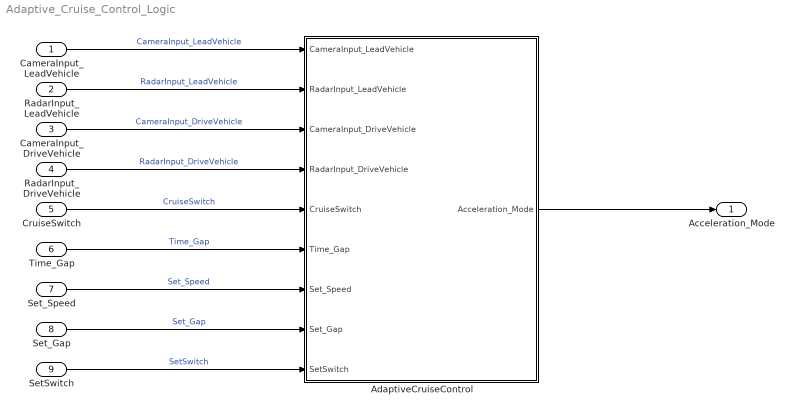
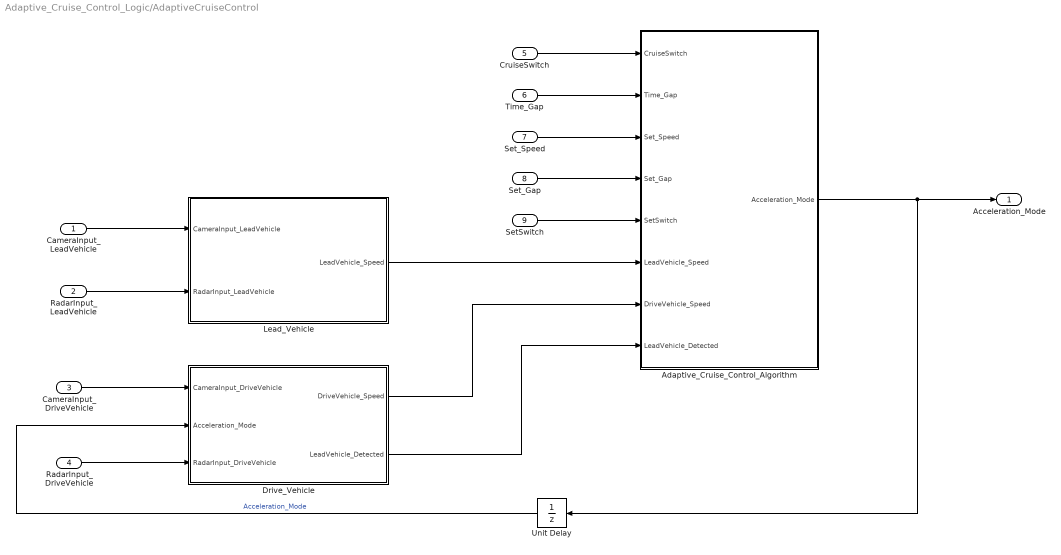
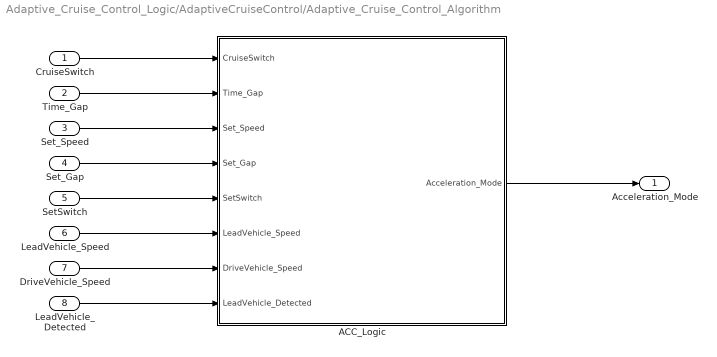
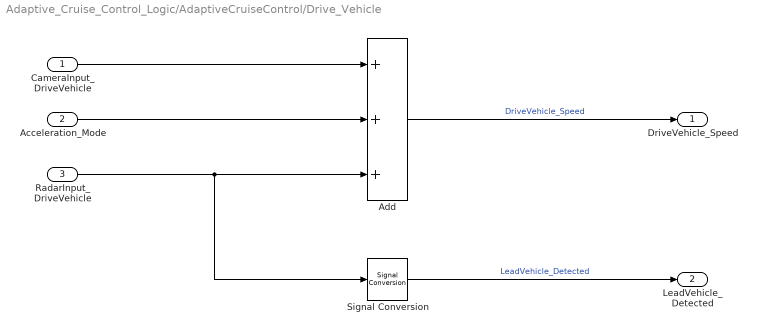
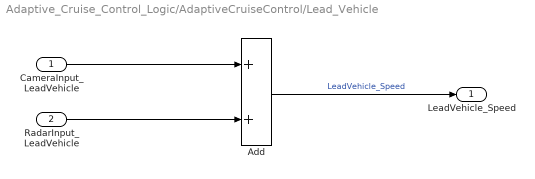
== stateflow chart Adaptive_Cruise_Control_Logic/AdaptiveCruiseControl/Adaptive_Cruise_Control_Algorithm/ACC_Logic ==
  state ACC_STANDBY_MODE
    entry:
    Acceleration_Mode=1;
  state ACC_OFF_MODE
    entry:
    Acceleration_Mode = 0;
  state ACC_ON_MODE
    state LeadVehicle_Detected_Resume
      entry:
      Acceleration_Mode=3;
    state LeadVehicle_Not_Detected_Resume
      entry:
      Acceleration_Mode=1;
    state LeadVehicle_Detected_Follow
      entry:
      Acceleration_Mode=2;
    state LeadVehicle_Not_Detected
      entry:
      Acceleration_Mode=1;
    state LeadVehicle_Speed_lessthan_Set_Speed
      entry:
      Acceleration_Mode=4;
    state LeadVehicle_Speed_equal_Set_Speed
      entry:
      Acceleration_Mode=5;
    (default) -> LeadVehicle_Detected_Follow
    LeadVehicle_Detected_Resume -> LeadVehicle_Detected_Follow [order 1] : [(DriveVehicle_Speed == Set_Speed) &&...  (LeadVehicle_Speed >= Set_Speed) &&...  (Time_Gap >= Set_Gap)]
    LeadVehicle_Detected_Resume -> LeadVehicle_Not_Detected_Resume [order 2] : [LeadVehicle_Detected==0]
    LeadVehicle_Detected_Follow -> LeadVehicle_Not_Detected [order 1] : [LeadVehicle_Detected == 0]
    LeadVehicle_Not_Detected -> LeadVehicle_Detected_Follow [order 1] : [(LeadVehicle_Detected == 1)&&... (DriveVehicle_Speed == Set_Speed) &&... (LeadVehicle_Speed >= Set_Speed) &&... (Time_Gap >= Set_Gap)]
    LeadVehicle_Speed_equal_Set_Speed -> LeadVehicle_Detected_Resume [order 1] : [(DriveVehicle_Speed < Set_Speed) &&...  (LeadVehicle_Speed > DriveVehicle_Speed) &&...  (Time_Gap >= Set_Gap)]
    LeadVehicle_Detected_Resume -> LeadVehicle_Speed_equal_Set_Speed [order 3] : [(DriveVehicle_Speed < Set_Speed) &&...  (LeadVehicle_Speed > DriveVehicle_Speed) ||...  (Time_Gap >= Set_Gap)]
    LeadVehicle_Speed_equal_Set_Speed -> LeadVehicle_Not_Detected_Resume [order 2] : [(LeadVehicle_Detected == 0) ||... (DriveVehicle_Speed <= Set_Speed)]
    LeadVehicle_Detected_Follow -> LeadVehicle_Speed_lessthan_Set_Speed [order 2] : [(LeadVehicle_Detected == 1)&&... (DriveVehicle_Speed < Set_Speed) ||... (Time_Gap < Set_Gap)]
    LeadVehicle_Not_Detected -> LeadVehicle_Speed_lessthan_Set_Speed [order 2] : [(LeadVehicle_Detected == 1) &&... (DriveVehicle_Speed < Set_Speed) ||... (Time_Gap < Set_Gap)]
    LeadVehicle_Speed_lessthan_Set_Speed -> LeadVehicle_Not_Detected [order 1] : [(LeadVehicle_Detected == 0) &&... (DriveVehicle_Speed == Set_Speed)]
    LeadVehicle_Speed_equal_Set_Speed -> LeadVehicle_Speed_lessthan_Set_Speed [order 3] : [(LeadVehicle_Speed < Set_Speed) &&... (LeadVehicle_Speed < DriveVehicle_Speed) ||... (Time_Gap ==0.75*Set_Gap)]
    LeadVehicle_Speed_lessthan_Set_Speed -> LeadVehicle_Speed_equal_Set_Speed [order 2] : [((LeadVehicle_Speed*1.25>=DriveVehicle_Speed) &&...  (LeadVehicle_Speed * 0.75<=DriveVehicle_Speed)) &&...  (DriveVehicle_Speed < Set_Speed) &&...  ((Time_Gap<=1.25*Set_Gap) &&...  (Time_Gap >=0.75*Set_Gap))]
  (default) -> ACC_OFF_MODE
  ACC_OFF_MODE -> ACC_STANDBY_MODE : [CruiseSwitch==1]
  ACC_STANDBY_MODE -> ACC_OFF_MODE [order 1] : [CruiseSwitch==0]
  ACC_ON_MODE -> ACC_OFF_MODE [order 2] : [CruiseSwitch==0]
  ACC_STANDBY_MODE -> ACC_ON_MODE [order 2] : [SetSwitch==1]
  ACC_ON_MODE -> ACC_STANDBY_MODE [order 1] : [SetSwitch==0]
  data: CruiseSwitch input; Time_Gap input; Set_Speed input; Set_Gap input; SetSwitch input; LeadVehicle_Speed input; DriveVehicle_Speed input; LeadVehicle_Detected input; Acceleration_Mode output uint8

/*
 * File: Adaptive_Cruise_Control_Logic.c
 *
 * Code generated for Simulink model 'Adaptive_Cruise_Control_Logic'.
 *
 * Model version                  : 1.18
 * Simulink Coder version         : 9.5 (R2021a) 14-Nov-2020
 * C/C++ source code generated on : Mon Apr  4 12:35:28 2022
 *
 * Target selection: ert.tlc
 * Embedded hardware selection: Intel->x86-64 (Windows64)
 * Code generation objectives: Unspecified
 * Validation result: Not run
 */

#include "Adaptive_Cruise_Control_Logic.h"
#include "Adaptive_Cruise_Control_Logic_private.h"

/* Named constants for Chart: '<S2>/ACC_Logic' */
#define Ada_IN_LeadVehicle_Not_Detected ((uint8_T)3U)
#define Adaptive_Cr_IN_ACC_STANDBY_MODE ((uint8_T)3U)
#define Adaptive_Cru_IN_NO_ACTIVE_CHILD ((uint8_T)0U)
#define Adaptive_Cruise_IN_ACC_OFF_MODE ((uint8_T)1U)
#define Adaptive_Cruise__IN_ACC_ON_MODE ((uint8_T)2U)
#define IN_LeadVehicle_Detected_Follow ((uint8_T)1U)
#define IN_LeadVehicle_Detected_Resume ((uint8_T)2U)
#define IN_LeadVehicle_Not_Detected_Res ((uint8_T)4U)
#define IN_LeadVehicle_Speed_equal_Set_ ((uint8_T)5U)
#define IN_LeadVehicle_Speed_lessthan_S ((uint8_T)6U)

/* Exported data definition */

/* Definition for custom storage class: ExportToFile */
uint8_T Acceleration_Mode;             /* '<S1>/Unit Delay' */

/* Block states (default storage) */
DW_Adaptive_Cruise_Control_Lo_T Adaptive_Cruise_Control_Logi_DW;

/* External outputs (root outports fed by signals with default storage) */
ExtY_Adaptive_Cruise_Control__T Adaptive_Cruise_Control_Logic_Y;

/* Real-time model */
static RT_MODEL_Adaptive_Cruise_Cont_T Adaptive_Cruise_Control_Logi_M_;
RT_MODEL_Adaptive_Cruise_Cont_T *const Adaptive_Cruise_Control_Logi_M =
  &Adaptive_Cruise_Control_Logi_M_;

/* Model step function */
void Adaptive_Cruise_Control_Logic_step(void)
{
  /* local block i/o variables */
  uint8_T LeadVehicle_Speed;
  uint8_T DriveVehicle_Speed;
  uint8_T LeadVehicle_Detected;

  /* Outputs for Atomic SubSystem: '<Root>/AdaptiveCruiseControl' */
  /* Sum: '<S4>/Add' incorporates:
   *  Inport: '<Root>/CameraInput_LeadVehicle'
   *  Inport: '<Root>/RadarInput_LeadVehicle'
   */
  LeadVehicle_Speed = (uint8_T)((uint32_T)CameraInput_LeadVehicle +
    RadarInput_LeadVehicle);

  /* UnitDelay: '<S1>/Unit Delay' */
  Acceleration_Mode = Adaptive_Cruise_Control_Logic_Y.Acceleration_Mode_j;

  /* Sum: '<S3>/Add' incorporates:
   *  Inport: '<Root>/CameraInput_DriveVehicle'
   *  Inport: '<Root>/RadarInput_DriveVehicle'
   */
  DriveVehicle_Speed = (uint8_T)((uint32_T)(uint8_T)((uint32_T)
    CameraInput_DriveVehicle + Acceleration_Mode) + RadarInput_DriveVehicle);

  /* SignalConversion: '<S3>/Signal Conversion' incorporates:
   *  Inport: '<Root>/RadarInput_DriveVehicle'
   */
  LeadVehicle_Detected = RadarInput_DriveVehicle;

  /* Chart: '<S2>/ACC_Logic' incorporates:
   *  Inport: '<Root>/CruiseSwitch'
   *  Inport: '<Root>/SetSwitch'
   *  Inport: '<Root>/Set_Gap'
   *  Inport: '<Root>/Set_Speed'
   *  Inport: '<Root>/Time_Gap'
   *  UnitDelay: '<S1>/Unit Delay'
   */
  if (Adaptive_Cruise_Control_Logi_DW.is_active_c1_Adaptive_Cruise_Co == 0U) {
    Adaptive_Cruise_Control_Logi_DW.is_active_c1_Adaptive_Cruise_Co = 1U;
    Adaptive_Cruise_Control_Logi_DW.is_c1_Adaptive_Cruise_Control_L =
      Adaptive_Cruise_IN_ACC_OFF_MODE;
    Adaptive_Cruise_Control_Logic_Y.Acceleration_Mode_j = 0U;
  } else {
    switch (Adaptive_Cruise_Control_Logi_DW.is_c1_Adaptive_Cruise_Control_L) {
     case Adaptive_Cruise_IN_ACC_OFF_MODE:
      Adaptive_Cruise_Control_Logic_Y.Acceleration_Mode_j = 0U;
      if (CruiseSwitch) {
        Adaptive_Cruise_Control_Logi_DW.is_c1_Adaptive_Cruise_Control_L =
          Adaptive_Cr_IN_ACC_STANDBY_MODE;
        Adaptive_Cruise_Control_Logic_Y.Acceleration_Mode_j = 1U;
      }
      break;

     case Adaptive_Cruise__IN_ACC_ON_MODE:
      if (!SetSwitch) {
        Adaptive_Cruise_Control_Logi_DW.is_ACC_ON_MODE =
          Adaptive_Cru_IN_NO_ACTIVE_CHILD;
        Adaptive_Cruise_Control_Logi_DW.is_c1_Adaptive_Cruise_Control_L =
          Adaptive_Cr_IN_ACC_STANDBY_MODE;
        Adaptive_Cruise_Control_Logic_Y.Acceleration_Mode_j = 1U;
      } else if (!CruiseSwitch) {
        Adaptive_Cruise_Control_Logi_DW.is_ACC_ON_MODE =
          Adaptive_Cru_IN_NO_ACTIVE_CHILD;
        Adaptive_Cruise_Control_Logi_DW.is_c1_Adaptive_Cruise_Control_L =
          Adaptive_Cruise_IN_ACC_OFF_MODE;
        Adaptive_Cruise_Control_Logic_Y.Acceleration_Mode_j = 0U;
      } else {
        switch (Adaptive_Cruise_Control_Logi_DW.is_ACC_ON_MODE) {
         case IN_LeadVehicle_Detected_Follow:
          Adaptive_Cruise_Control_Logic_Y.Acceleration_Mode_j = 2U;
          if (LeadVehicle_Detected == 0) {
            Adaptive_Cruise_Control_Logi_DW.is_ACC_ON_MODE =
              Ada_IN_LeadVehicle_Not_Detected;
            Adaptive_Cruise_Control_Logic_Y.Acceleration_Mode_j = 1U;
          } else if (((LeadVehicle_Detected == 1) && (DriveVehicle_Speed <
                       Set_Speed)) || (Time_Gap < Set_Gap)) {
            Adaptive_Cruise_Control_Logi_DW.is_ACC_ON_MODE =
              IN_LeadVehicle_Speed_lessthan_S;
            Adaptive_Cruise_Control_Logic_Y.Acceleration_Mode_j = 4U;
          }
          break;

         case IN_LeadVehicle_Detected_Resume:
          Adaptive_Cruise_Control_Logic_Y.Acceleration_Mode_j = 3U;
          if ((DriveVehicle_Speed == Set_Speed) && (LeadVehicle_Speed >=
               Set_Speed) && (Time_Gap >= Set_Gap)) {
            Adaptive_Cruise_Control_Logi_DW.is_ACC_ON_MODE =
              IN_LeadVehicle_Detected_Follow;
            Adaptive_Cruise_Control_Logic_Y.Acceleration_Mode_j = 2U;
          } else if (LeadVehicle_Detected == 0) {
            Adaptive_Cruise_Control_Logi_DW.is_ACC_ON_MODE =
              IN_LeadVehicle_Not_Detected_Res;
            Adaptive_Cruise_Control_Logic_Y.Acceleration_Mode_j = 1U;
          } else if (((DriveVehicle_Speed < Set_Speed) && (LeadVehicle_Speed >
                       DriveVehicle_Speed)) || (Time_Gap >= Set_Gap)) {
            Adaptive_Cruise_Control_Logi_DW.is_ACC_ON_MODE =
              IN_LeadVehicle_Speed_equal_Set_;
            Adaptive_Cruise_Control_Logic_Y.Acceleration_Mode_j = 5U;
          }
          break;

         case Ada_IN_LeadVehicle_Not_Detected:
          Adaptive_Cruise_Control_Logic_Y.Acceleration_Mode_j = 1U;
          if ((LeadVehicle_Detected == 1) && (DriveVehicle_Speed == Set_Speed) &&
              (LeadVehicle_Speed >= Set_Speed) && (Time_Gap >= Set_Gap)) {
            Adaptive_Cruise_Control_Logi_DW.is_ACC_ON_MODE =
              IN_LeadVehicle_Detected_Follow;
            Adaptive_Cruise_Control_Logic_Y.Acceleration_Mode_j = 2U;
          } else if (((LeadVehicle_Detected == 1) && (DriveVehicle_Speed <
                       Set_Speed)) || (Time_Gap < Set_Gap)) {
            Adaptive_Cruise_Control_Logi_DW.is_ACC_ON_MODE =
              IN_LeadVehicle_Speed_lessthan_S;
            Adaptive_Cruise_Control_Logic_Y.Acceleration_Mode_j = 4U;
          }
          break;

         case IN_LeadVehicle_Not_Detected_Res:
          Adaptive_Cruise_Control_Logic_Y.Acceleration_Mode_j = 1U;
          break;

         case IN_LeadVehicle_Speed_equal_Set_:
          Adaptive_Cruise_Control_Logic_Y.Acceleration_Mode_j = 5U;
          if ((DriveVehicle_Speed < Set_Speed) && (LeadVehicle_Speed >
               DriveVehicle_Speed) && (Time_Gap >= Set_Gap)) {
            Adaptive_Cruise_Control_Logi_DW.is_ACC_ON_MODE =
              IN_LeadVehicle_Detected_Resume;
            Adaptive_Cruise_Control_Logic_Y.Acceleration_Mode_j = 3U;
          } else if ((LeadVehicle_Detected == 0) || (DriveVehicle_Speed <=
                      Set_Speed)) {
            Adaptive_Cruise_Control_Logi_DW.is_ACC_ON_MODE =
              IN_LeadVehicle_Not_Detected_Res;
            Adaptive_Cruise_Control_Logic_Y.Acceleration_Mode_j = 1U;
          } else if (((LeadVehicle_Speed < Set_Speed) && (LeadVehicle_Speed <
                       DriveVehicle_Speed)) || (0.75 * (real_T)Set_Gap ==
                      Time_Gap)) {
            Adaptive_Cruise_Control_Logi_DW.is_ACC_ON_MODE =
              IN_LeadVehicle_Speed_lessthan_S;
            Adaptive_Cruise_Control_Logic_Y.Acceleration_Mode_j = 4U;
          }
          break;

         default:
          /* case IN_LeadVehicle_Speed_lessthan_Set_Speed: */
          Adaptive_Cruise_Control_Logic_Y.Acceleration_Mode_j = 4U;
          if ((LeadVehicle_Detected == 0) && (DriveVehicle_Speed == Set_Speed))
          {
            Adaptive_Cruise_Control_Logi_DW.is_ACC_ON_MODE =
              Ada_IN_LeadVehicle_Not_Detected;
            Adaptive_Cruise_Control_Logic_Y.Acceleration_Mode_j = 1U;

            /*      */
          } else if (((real_T)LeadVehicle_Speed * 1.25 >= DriveVehicle_Speed) &&
                     ((real_T)LeadVehicle_Speed * 0.75 <= DriveVehicle_Speed) &&
                     (DriveVehicle_Speed < Set_Speed) && ((Time_Gap <= 1.25 *
                       (real_T)Set_Gap) && (Time_Gap >= 0.75 * (real_T)Set_Gap)))
          {
            Adaptive_Cruise_Control_Logi_DW.is_ACC_ON_MODE =
              IN_LeadVehicle_Speed_equal_Set_;
            Adaptive_Cruise_Control_Logic_Y.Acceleration_Mode_j = 5U;
          }
          break;
        }
      }
      break;

     default:
      /* case IN_ACC_STANDBY_MODE: */
      Adaptive_Cruise_Control_Logic_Y.Acceleration_Mode_j = 1U;
      if (!CruiseSwitch) {
        Adaptive_Cruise_Control_Logi_DW.is_c1_Adaptive_Cruise_Control_L =
          Adaptive_Cruise_IN_ACC_OFF_MODE;
        Adaptive_Cruise_Control_Logic_Y.Acceleration_Mode_j = 0U;
      } else if (SetSwitch) {
        Adaptive_Cruise_Control_Logi_DW.is_c1_Adaptive_Cruise_Control_L =
          Adaptive_Cruise__IN_ACC_ON_MODE;
        Adaptive_Cruise_Control_Logi_DW.is_ACC_ON_MODE =
          IN_LeadVehicle_Detected_Follow;
        Adaptive_Cruise_Control_Logic_Y.Acceleration_Mode_j = 2U;
      }
      break;
    }
  }

  /* End of Chart: '<S2>/ACC_Logic' */
  /* End of Outputs for SubSystem: '<Root>/AdaptiveCruiseControl' */
}
